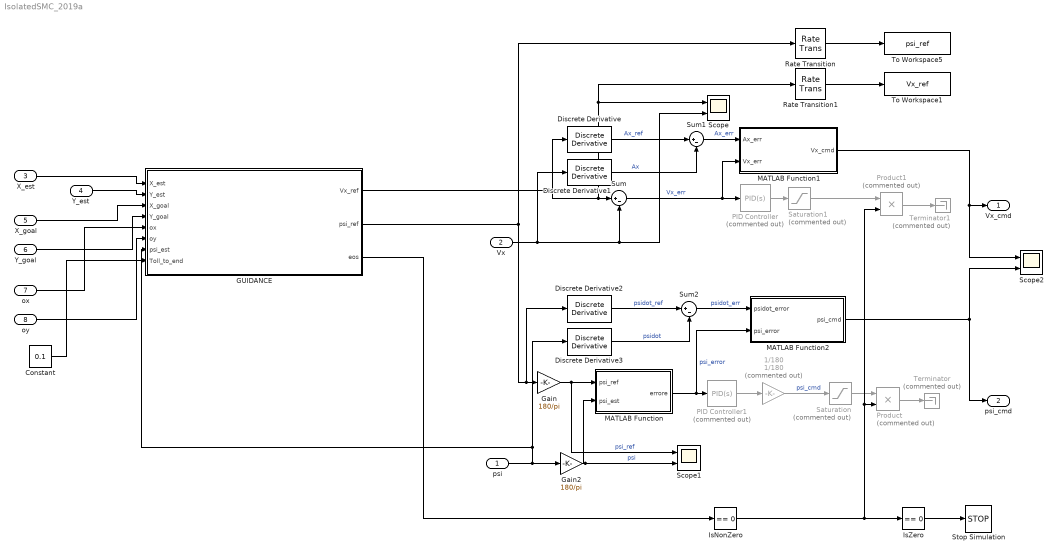
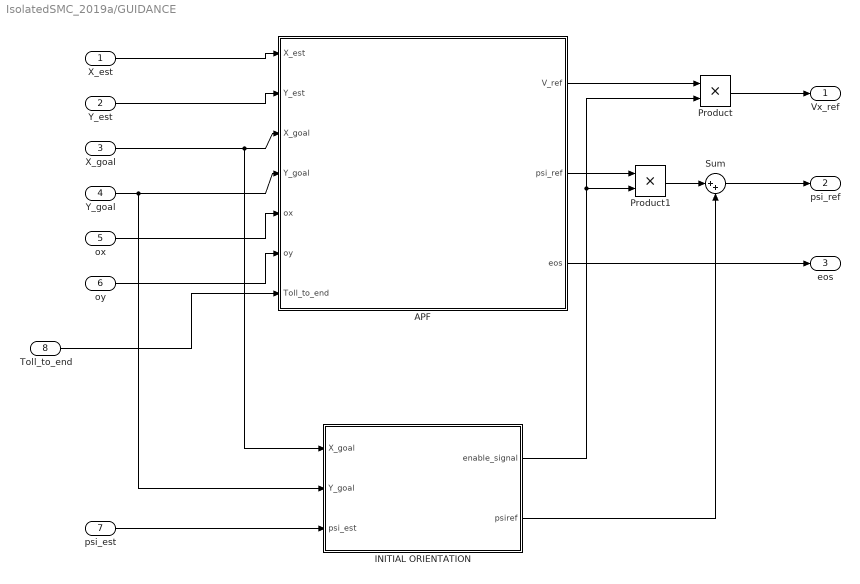
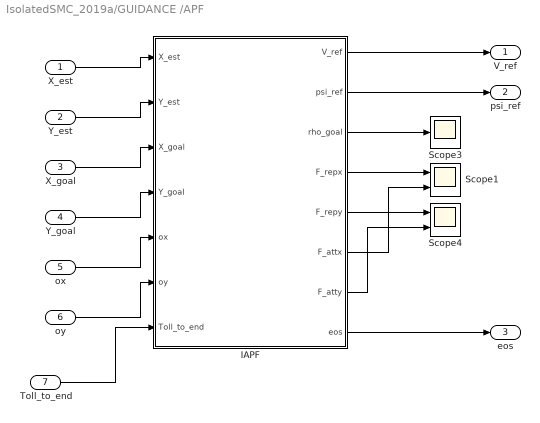
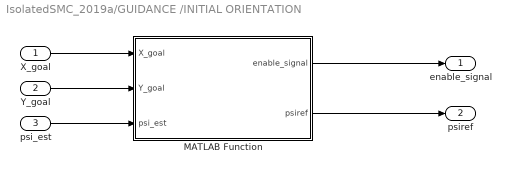
== matlab function IsolatedSMC_2019a/GUIDANCE /INITIAL ORIENTATION/MATLAB Function ==
function [enable_signal, psiref] = fcn(X_goal, Y_goal, psi_est)
psiref=0;
enable_signal=0;

persistent en
if isempty(en)
    en=0;
end

if en==0
if -pi<psi_est && psi_est<=-pi/2 
  if X_goal>=0 && Y_goal>=0
      enable_signal=0;
      psiref=0;
      en=0;
  end
   if X_goal>0 && Y_goal<0
      enable_signal=0;
      psiref=0;
      en=0;
   end
    if X_goal<=0 && Y_goal<=0
      enable_signal=1;
      en=1;
      psiref=0;
    end
    if X_goal<0 && Y_goal>0
      enable_signal=1;
      en=1;
      psiref=0;
    end
end
if pi/2<psi_est && psi_est<=pi 
  if X_goal>=0 && Y_goal>=0
      enable_signal=0;
      psiref=0;
      en=0;
  end
   if X_goal>0 && Y_goal<0
      enable_signal=0;
      psiref=0;
      en=0;
   end
    if X_goal<=0 && Y_goal<=0
      enable_signal=1;
      en=1;
      psiref=0;
    end
    if X_goal<0 && Y_goal>0
      enable_signal=1;
      en=1;
      psiref=0;
    end
end

if -pi/2<=psi_est && psi_est<=pi/2
  if X_goal>=0 && Y_goal>=0
      enable_signal=1;
      en=1;
      psiref=0;
  end
   if X_goal>0 && Y_goal<0
      enable_signal=1;
      en=1;
      psiref=0;
   end
    if X_goal<=0 && Y_goal<=0
      enable_signal=0;
      psiref=-pi;
      en=0;
    end
    if X_goal<0 && Y_goal>0
      enable_signal=0;
      psiref=pi;
      en=0;
    end
end
else
    enable_signal=1;
    psiref=0;
end

== matlab function IsolatedSMC_2019a/MATLAB Function1 ==
function Vx_cmd = SMC_Vx(Ax_err, Vx_err)
% SMC params
lamda = 30;
K = 0.1;
% Sliding surface
s = zeros(1);
s = (Ax_err) + lamda*(Vx_err);


Vx_cmd = K*sign(s);

== matlab function IsolatedSMC_2019a/MATLAB Function ==
function errore = fcn(psi_ref, psi_est)
errore=psi_ref-psi_est;

if abs(errore)>180
    errore=errore-360*sign(errore);
end

== matlab function IsolatedSMC_2019a/GUIDANCE /APF/IAPF ==
function [V_ref, psi_ref, rho_goal, F_repx, F_repy, F_attx, F_atty, eos]  = fcn(X_est, Y_est, X_goal, Y_goal,  ox, oy, Toll_to_end)

% Potential field characteristics
rho_0=0.7;                   % Area of influence of obstacle  [m]
kp = 0.15;                   % Attractive pottential gain
eta = 0.05;                  % Repulsive potential gain

q=[X_est, Y_est]';           % Actual position [m]       
qg=[X_goal, Y_goal]';        % Goal position   [m]
rho_goal=norm(q-qg,2);       % Distance actual position-goal position
d=2;                         % Distance from goal, point of attractive field characteristic switching

% ATTRACTIVE
if rho_goal<=d
F_attx = -kp*(X_est-X_goal);
F_atty = -kp*(Y_est-Y_goal);
else    
F_attx = -kp*(X_est-X_goal)*d/rho_goal;
F_atty = -kp*(Y_est-Y_goal)*d/rho_goal;
end


% REPULSIVE
F_repx=0;
F_repy=0;
dmin=10000;
qc=[0 0]';
obst=0;

for k=1:length(ox)
    qc=[ox(k) oy(k)]';                          % Obstacle position [m]
    dq = norm(q-qc,2);                          % Distance actual position- obstacle position
     
    if dmin >= dq
        dmin = dq;
        min_ost = k;
        qc=[ox(min_ost) oy(min_ost)]';
        rho = norm(q-qc,2) ;                    % Distance with the nearest obstacle
        
        if rho<=rho_0                           % Inside obstacle area! Danger
           F_repx=eta*(1/rho - 1/rho_0)*1/(rho).^2*(X_est-ox(min_ost))/norm(q-qc,2);
           F_repy=eta*(1/rho - 1/rho_0)*1/(rho).^2*(Y_est-oy(min_ost))/norm(q-qc,2);  
           obst=1/rho;
        end
     
     end
end

% To find the goal if the obstacle is near
dob=0.3;
dgr=0.3;

if norm(qg-qc,2)<=dob && norm(q-qg,2)<=dgr
    F_totx=F_attx;
    F_toty=F_atty;
else
    F_totx = F_attx+F_repx;
    F_toty = F_atty+F_repy;
end

% Potential Force
F_tot=norm([F_totx,F_toty]);


% ORIENTATION REFERENCE SIGNAL
psi_ref=atan2(F_toty,F_totx);


% VELOCITY REFERENCE SIGNAL
% 1° prova per il campo di velocità
% V_ref=F_totx/F_tot*0.3;

% 2° prova per il campo di velocità
delta=0.4/rho_goal+obst;
V_ref= 0.3*2/(2+delta);

eos = 0;
% END OF SIMULATION
if abs(rho_goal)<=Toll_to_end
    eos=1;
end

% Mathematical minimum
if F_tot==0
    psi_ref=0;
    V_ref=-0.3;
end

== matlab function IsolatedSMC_2019a/MATLAB Function2 ==
function psi_cmd = SMC_psi(psidot_error, psi_error)
% SMC params
lamda = 100;
K = 0.2;
% Sliding surface
s = zeros(1);
s = (psidot_error) + lamda*(psi_error);


psi_cmd = K*sign(s);

//
// Academic License - for use in teaching, academic research, and meeting
// course requirements at degree granting institutions only.  Not for
// government, commercial, or other organizational use.
//
// File: IsolatedSMC_2019a.cpp
//
// Code generated for Simulink model 'IsolatedSMC_2019a'.
//
// Model version                  : 1.2
// Simulink Coder version         : 9.1 (R2019a) 23-Nov-2018
// C/C++ source code generated on : Thu Dec  2 12:20:31 2021
//
// Target selection: ert.tlc
// Embedded hardware selection: ARM Compatible->ARM Cortex
// Code generation objectives: Unspecified
// Validation result: Not run
//
#include "IsolatedSMC_2019a.h"
#include "IsolatedSMC_2019a_private.h"

// Forward declaration for local functions
static real_T IsolatedSMC_2019a_norm(const real_T x[2]);

// Function for MATLAB Function: '<S11>/IAPF'
static real_T IsolatedSMC_2019a_norm(const real_T x[2])
{
  real_T y;
  real_T scale;
  real_T absxk;
  real_T t;
  scale = 3.3121686421112381E-170;
  absxk = fabs(x[0]);
  if (absxk > 3.3121686421112381E-170) {
    y = 1.0;
    scale = absxk;
  } else {
    t = absxk / 3.3121686421112381E-170;
    y = t * t;
  }

  absxk = fabs(x[1]);
  if (absxk > scale) {
    t = scale / absxk;
    y = y * t * t + 1.0;
    scale = absxk;
  } else {
    t = absxk / scale;
    y += t * t;
  }

  return scale * sqrt(y);
}

real_T rt_atan2d_snf(real_T u0, real_T u1)
{
  real_T y;
  int32_T u0_0;
  int32_T u1_0;
  if (rtIsNaN(u0) || rtIsNaN(u1)) {
    y = (rtNaN);
  } else if (rtIsInf(u0) && rtIsInf(u1)) {
    if (u0 > 0.0) {
      u0_0 = 1;
    } else {
      u0_0 = -1;
    }

    if (u1 > 0.0) {
      u1_0 = 1;
    } else {
      u1_0 = -1;
    }

    y = atan2((real_T)u0_0, (real_T)u1_0);
  } else if (u1 == 0.0) {
    if (u0 > 0.0) {
      y = RT_PI / 2.0;
    } else if (u0 < 0.0) {
      y = -(RT_PI / 2.0);
    } else {
      y = 0.0;
    }
  } else {
    y = atan2(u0, u1);
  }

  return y;
}

// Model step function
void IsolatedSMC_2019a_step(RT_MODEL_IsolatedSMC_2019a_T *const
  IsolatedSMC_2019a_M, ExtU_IsolatedSMC_2019a_T *IsolatedSMC_2019a_U,
  ExtY_IsolatedSMC_2019a_T *IsolatedSMC_2019a_Y)
{
  DW_IsolatedSMC_2019a_T *IsolatedSMC_2019a_DW = ((DW_IsolatedSMC_2019a_T *)
    IsolatedSMC_2019a_M->dwork);
  real_T F_repy;
  real_T obst;
  real_T rho;
  real_T F_totx;
  real_T F_toty;
  real_T F_tot;
  real_T scale;
  real_T absxk;
  real_T t;
  int32_T rtb_enable_signal;
  real_T rtb_psiref;
  int32_T rtb_eos;
  real_T q[2];
  real_T q_0[2];
  real_T q_tmp;
  boolean_T guard1 = false;

  // MATLAB Function: '<S11>/IAPF' incorporates:
  //   Constant: '<Root>/Constant'
  //   Inport: '<Root>/X_est'
  //   Inport: '<Root>/X_goal'
  //   Inport: '<Root>/Y_est'
  //   Inport: '<Root>/Y_goal'
  //   Inport: '<Root>/ox'
  //   Inport: '<Root>/oy'

  F_tot = IsolatedSMC_2019a_U->X_est - IsolatedSMC_2019a_U->X_goal;
  q_0[0] = F_tot;
  scale = IsolatedSMC_2019a_U->Y_est - IsolatedSMC_2019a_U->Y_goal;
  q_0[1] = scale;
  rtb_psiref = IsolatedSMC_2019a_norm(q_0);
  if (rtb_psiref <= 2.0) {
    F_totx = (IsolatedSMC_2019a_U->X_est - IsolatedSMC_2019a_U->X_goal) * -0.15;
    F_toty = (IsolatedSMC_2019a_U->Y_est - IsolatedSMC_2019a_U->Y_goal) * -0.15;
  } else {
    F_totx = F_tot * -0.15 * 2.0 / rtb_psiref;
    F_toty = scale * -0.15 * 2.0 / rtb_psiref;
  }

  absxk = 0.0;
  F_repy = 0.0;
  obst = 0.0;
  t = IsolatedSMC_2019a_U->X_est - IsolatedSMC_2019a_U->ox;
  q_0[0] = t;
  q_tmp = IsolatedSMC_2019a_U->Y_est - IsolatedSMC_2019a_U->oy;
  q_0[1] = q_tmp;
  if (10000.0 >= IsolatedSMC_2019a_norm(q_0)) {
    q_0[0] = t;
    q_0[1] = q_tmp;
    rho = IsolatedSMC_2019a_norm(q_0);
    if (rho <= 0.7) {
      q_0[0] = t;
      q[0] = t;
      q_0[1] = q_tmp;
      q[1] = q_tmp;
      obst = (1.0 / rho - 1.4285714285714286) * 0.05 / (rho * rho);
      absxk = obst * t / IsolatedSMC_2019a_norm(q_0);
      F_repy = obst * q_tmp / IsolatedSMC_2019a_norm(q);
      obst = 1.0 / rho;
    }
  }

  q_0[0] = IsolatedSMC_2019a_U->X_goal - IsolatedSMC_2019a_U->ox;
  q_0[1] = IsolatedSMC_2019a_U->Y_goal - IsolatedSMC_2019a_U->oy;
  guard1 = false;
  if (IsolatedSMC_2019a_norm(q_0) <= 0.3) {
    q_0[0] = F_tot;
    q_0[1] = scale;
    if (IsolatedSMC_2019a_norm(q_0) <= 0.3) {
    } else {
      guard1 = true;
    }
  } else {
    guard1 = true;
  }

  if (guard1) {
    F_totx += absxk;
    F_toty += F_repy;
  }

  scale = 3.3121686421112381E-170;
  absxk = fabs(F_totx);
  if (absxk > 3.3121686421112381E-170) {
    F_tot = 1.0;
    scale = absxk;
  } else {
    t = absxk / 3.3121686421112381E-170;
    F_tot = t * t;
  }

  absxk = fabs(F_toty);
  if (absxk > scale) {
    t = scale / absxk;
    F_tot = F_tot * t * t + 1.0;
    scale = absxk;
  } else {
    t = absxk / scale;
    F_tot += t * t;
  }

  F_tot = scale * sqrt(F_tot);
  F_totx = rt_atan2d_snf(F_toty, F_totx);
  obst = 0.6 / ((0.4 / rtb_psiref + obst) + 2.0);
  rtb_eos = 0;
  if (fabs(rtb_psiref) <= 0.1) {
    rtb_eos = 1;
  }

  if (F_tot == 0.0) {
    F_totx = 0.0;
    obst = -0.3;
  }

  // End of MATLAB Function: '<S11>/IAPF'

  // MATLAB Function: '<S12>/MATLAB Function' incorporates:
  //   Inport: '<Root>/X_goal'
  //   Inport: '<Root>/Y_goal'
  //   Inport: '<Root>/psi'

  rtb_psiref = 0.0;
  rtb_enable_signal = 0;
  if (IsolatedSMC_2019a_DW->en == 0.0) {
    if ((-3.1415926535897931 < IsolatedSMC_2019a_U->psi) &&
        (IsolatedSMC_2019a_U->psi <= -1.5707963267948966)) {
      if ((IsolatedSMC_2019a_U->X_goal >= 0.0) && (IsolatedSMC_2019a_U->Y_goal >=
           0.0)) {
        IsolatedSMC_2019a_DW->en = 0.0;
      }

      if ((IsolatedSMC_2019a_U->X_goal > 0.0) && (IsolatedSMC_2019a_U->Y_goal <
           0.0)) {
        IsolatedSMC_2019a_DW->en = 0.0;
      }

      if ((IsolatedSMC_2019a_U->X_goal <= 0.0) && (IsolatedSMC_2019a_U->Y_goal <=
           0.0)) {
        rtb_enable_signal = 1;
        IsolatedSMC_2019a_DW->en = 1.0;
      }

      if ((IsolatedSMC_2019a_U->X_goal < 0.0) && (IsolatedSMC_2019a_U->Y_goal >
           0.0)) {
        rtb_enable_signal = 1;
        IsolatedSMC_2019a_DW->en = 1.0;
      }
    }

    if ((1.5707963267948966 < IsolatedSMC_2019a_U->psi) &&
        (IsolatedSMC_2019a_U->psi <= 3.1415926535897931)) {
      if ((IsolatedSMC_2019a_U->X_goal >= 0.0) && (IsolatedSMC_2019a_U->Y_goal >=
           0.0)) {
        rtb_enable_signal = 0;
        IsolatedSMC_2019a_DW->en = 0.0;
      }

      if ((IsolatedSMC_2019a_U->X_goal > 0.0) && (IsolatedSMC_2019a_U->Y_goal <
           0.0)) {
        rtb_enable_signal = 0;
        IsolatedSMC_2019a_DW->en = 0.0;
      }

      if ((IsolatedSMC_2019a_U->X_goal <= 0.0) && (IsolatedSMC_2019a_U->Y_goal <=
           0.0)) {
        rtb_enable_signal = 1;
        IsolatedSMC_2019a_DW->en = 1.0;
      }

      if ((IsolatedSMC_2019a_U->X_goal < 0.0) && (IsolatedSMC_2019a_U->Y_goal >
           0.0)) {
        rtb_enable_signal = 1;
        IsolatedSMC_2019a_DW->en = 1.0;
      }
    }

    if ((-1.5707963267948966 <= IsolatedSMC_2019a_U->psi) &&
        (IsolatedSMC_2019a_U->psi <= 1.5707963267948966)) {
      if ((IsolatedSMC_2019a_U->X_goal >= 0.0) && (IsolatedSMC_2019a_U->Y_goal >=
           0.0)) {
        rtb_enable_signal = 1;
        IsolatedSMC_2019a_DW->en = 1.0;
      }

      if ((IsolatedSMC_2019a_U->X_goal > 0.0) && (IsolatedSMC_2019a_U->Y_goal <
           0.0)) {
        rtb_enable_signal = 1;
        IsolatedSMC_2019a_DW->en = 1.0;
      }

      if ((IsolatedSMC_2019a_U->X_goal <= 0.0) && (IsolatedSMC_2019a_U->Y_goal <=
           0.0)) {
        rtb_enable_signal = 0;
        rtb_psiref = -3.1415926535897931;
        IsolatedSMC_2019a_DW->en = 0.0;
      }

      if ((IsolatedSMC_2019a_U->X_goal < 0.0) && (IsolatedSMC_2019a_U->Y_goal >
           0.0)) {
        rtb_enable_signal = 0;
        rtb_psiref = 3.1415926535897931;
        IsolatedSMC_2019a_DW->en = 0.0;
      }
    }
  } else {
    rtb_enable_signal = 1;
  }

  // End of MATLAB Function: '<S12>/MATLAB Function'

  // Sum: '<S5>/Sum' incorporates:
  //   Product: '<S5>/Product1'

  F_tot = F_totx * static_cast<real_T>(rtb_enable_signal) + rtb_psiref;

  // SampleTimeMath: '<S3>/TSamp'
  //
  //  About '<S3>/TSamp':
  //   y = u * K where K = 1 / ( w * Ts )

  rtb_psiref = F_tot * 100.0;

  // SampleTimeMath: '<S4>/TSamp' incorporates:
  //   Inport: '<Root>/psi'
  //
  //  About '<S4>/TSamp':
  //   y = u * K where K = 1 / ( w * Ts )

  F_totx = IsolatedSMC_2019a_U->psi * 100.0;

  // MATLAB Function: '<Root>/MATLAB Function' incorporates:
  //   Gain: '<Root>/Gain'
  //   Gain: '<Root>/Gain2'
  //   Inport: '<Root>/psi'

  F_toty = 57.295779513082323 * F_tot - 57.295779513082323 *
    IsolatedSMC_2019a_U->psi;
  if (fabs(F_toty) > 180.0) {
    if (F_toty < 0.0) {
      F_tot = -1.0;
    } else if (F_toty > 0.0) {
      F_tot = 1.0;
    } else if (F_toty == 0.0) {
      F_tot = 0.0;
    } else {
      F_tot = (rtNaN);
    }

    F_toty -= 360.0 * F_tot;
  }

  // End of MATLAB Function: '<Root>/MATLAB Function'

  // MATLAB Function: '<Root>/MATLAB Function2' incorporates:
  //   Sum: '<Root>/Sum2'
  //   Sum: '<S3>/Diff'
  //   Sum: '<S4>/Diff'
  //   UnitDelay: '<S3>/UD'
  //   UnitDelay: '<S4>/UD'
  //
  //  Block description for '<S3>/Diff':
  //
  //   Add in CPU
  //
  //  Block description for '<S4>/Diff':
  //
  //   Add in CPU
  //
  //  Block description for '<S3>/UD':
  //
  //   Store in Global RAM
  //
  //  Block description for '<S4>/UD':
  //
  //   Store in Global RAM

  F_tot = ((rtb_psiref - IsolatedSMC_2019a_DW->UD_DSTATE) - (F_totx -
            IsolatedSMC_2019a_DW->UD_DSTATE_b)) + 100.0 * F_toty;
  if (F_tot < 0.0) {
    F_tot = -1.0;
  } else if (F_tot > 0.0) {
    F_tot = 1.0;
  } else if (F_tot == 0.0) {
    F_tot = 0.0;
  } else {
    F_tot = (rtNaN);
  }

  // Outport: '<Root>/psi_cmd' incorporates:
  //   MATLAB Function: '<Root>/MATLAB Function2'

  IsolatedSMC_2019a_Y->psi_cmd = 0.2 * F_tot;

  // Product: '<S5>/Product'
  F_tot = obst * static_cast<real_T>(rtb_enable_signal);

  // SampleTimeMath: '<S1>/TSamp'
  //
  //  About '<S1>/TSamp':
  //   y = u * K where K = 1 / ( w * Ts )

  obst = F_tot * 100.0;

  // SampleTimeMath: '<S2>/TSamp' incorporates:
  //   Inport: '<Root>/Vx'
  //
  //  About '<S2>/TSamp':
  //   y = u * K where K = 1 / ( w * Ts )

  F_toty = IsolatedSMC_2019a_U->Vx * 100.0;

  // MATLAB Function: '<Root>/MATLAB Function1' incorporates:
  //   Inport: '<Root>/Vx'
  //   Sum: '<Root>/Sum'
  //   Sum: '<Root>/Sum1'
  //   Sum: '<S1>/Diff'
  //   Sum: '<S2>/Diff'
  //   UnitDelay: '<S1>/UD'
  //   UnitDelay: '<S2>/UD'
  //
  //  Block description for '<S1>/Diff':
  //
  //   Add in CPU
  //
  //  Block description for '<S2>/Diff':
  //
  //   Add in CPU
  //
  //  Block description for '<S1>/UD':
  //
  //   Store in Global RAM
  //
  //  Block description for '<S2>/UD':
  //
  //   Store in Global RAM

  F_tot = ((obst - IsolatedSMC_2019a_DW->UD_DSTATE_m) - (F_toty -
            IsolatedSMC_2019a_DW->UD_DSTATE_o)) + (F_tot -
    IsolatedSMC_2019a_U->Vx) * 30.0;
  if (F_tot < 0.0) {
    F_tot = -1.0;
  } else if (F_tot > 0.0) {
    F_tot = 1.0;
  } else if (F_tot == 0.0) {
    F_tot = 0.0;
  } else {
    F_tot = (rtNaN);
  }

  // Outport: '<Root>/Vx_cmd' incorporates:
  //   MATLAB Function: '<Root>/MATLAB Function1'

  IsolatedSMC_2019a_Y->Vx_cmd = 0.1 * F_tot;

  // Stop: '<Root>/Stop Simulation' incorporates:
  //   Constant: '<S6>/Constant'
  //   RelationalOperator: '<S6>/Compare'

  if (rtb_eos != 0) {
    rtmSetStopRequested(IsolatedSMC_2019a_M, 1);
  }

  // End of Stop: '<Root>/Stop Simulation'

  // Update for UnitDelay: '<S3>/UD'
  //
  //  Block description for '<S3>/UD':
  //
  //   Store in Global RAM

  IsolatedSMC_2019a_DW->UD_DSTATE = rtb_psiref;

  // Update for UnitDelay: '<S4>/UD'
  //
  //  Block description for '<S4>/UD':
  //
  //   Store in Global RAM

  IsolatedSMC_2019a_DW->UD_DSTATE_b = F_totx;

  // Update for UnitDelay: '<S1>/UD'
  //
  //  Block description for '<S1>/UD':
  //
  //   Store in Global RAM

  IsolatedSMC_2019a_DW->UD_DSTATE_m = obst;

  // Update for UnitDelay: '<S2>/UD'
  //
  //  Block description for '<S2>/UD':
  //
  //   Store in Global RAM

  IsolatedSMC_2019a_DW->UD_DSTATE_o = F_toty;
}
